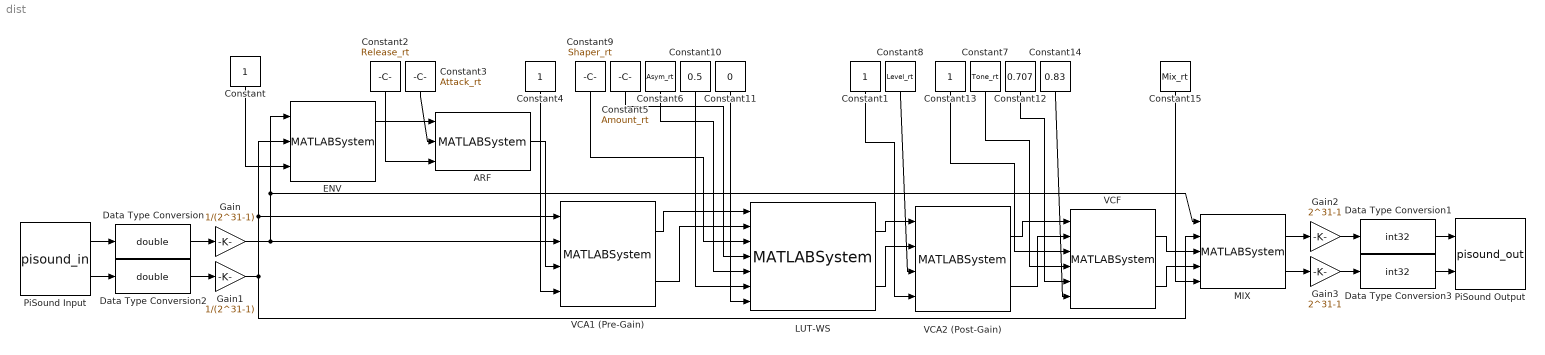
/*
 * Academic License - for use in teaching, academic research, and meeting
 * course requirements at degree granting institutions only.  Not for
 * government, commercial, or other organizational use.
 *
 * File: dist.c
 *
 * Code generated for Simulink model 'dist'.
 *
 * Model version                  : 1.41
 * Simulink Coder version         : 25.2 (R2025b) 28-Jul-2025
 * C/C++ source code generated on : Fri Mar  6 12:08:05 2026
 *
 * Target selection: ert.tlc
 * Embedded hardware selection: Intel->x86-64 (Windows64)
 * Code generation objectives: Unspecified
 * Validation result: Not run
 */

#include "dist.h"
#include "rtwtypes.h"
#include "dist_types.h"
#include <string.h>
#include <math.h>
#include "dist_private.h"
#include "rt_nonfinite.h"

/* Block signals (default storage) */
B_dist_T dist_B;

/* Block states (default storage) */
DW_dist_T dist_DW;

/* Real-time model */
static RT_MODEL_dist_T dist_M_;
RT_MODEL_dist_T *const dist_M = &dist_M_;

/* Forward declaration for local functions */
static boolean_T dist_isequal(const real_T varargin_1[257], const real_T
  varargin_2[257]);
static void dist_filter(const real_T b[15], const real_T x[256], const real_T
  zi[14], real_T y[256], real_T zf[14]);
static void dist_filter_k(const real_T b[15], const real_T x[512], const real_T
  zi[14], real_T y[512], real_T zf[14]);
static real_T dist_lut_ws_sys_shapeOne(const lut_ws_sys_dist_T *obj, real_T x,
  uint8_T md, real_T drive, real_T b, real_T cheb3, real_T cheb5, const real_T
  xGrid[257], const real_T yGrid[257]);
static void dis_lut_ws_sys_processChannelOS(const lut_ws_sys_dist_T *obj, const
  real_T x[128], uint8_T os, uint8_T md, real_T drive, real_T b, real_T cheb3,
  real_T cheb5, const real_T xGrid[257], const real_T yGrid[257], real_T zUp1[14],
  real_T zUp2[14], real_T zDn1[14], real_T zDn2[14], real_T y[128]);
static void dist_filter_kn(real_T b[3], real_T a[3], const real_T x[128], const
  real_T zi[2], real_T y[128], real_T zf[2]);
real_T rt_powd_snf(real_T u0, real_T u1)
{
  real_T y;
  if (rtIsNaN(u0) || rtIsNaN(u1)) {
    y = (rtNaN);
  } else {
    real_T tmp;
    real_T tmp_0;
    tmp = fabs(u0);
    tmp_0 = fabs(u1);
    if (rtIsInf(u1)) {
      if (tmp == 1.0) {
        y = 1.0;
      } else if (tmp > 1.0) {
        if (u1 > 0.0) {
          y = (rtInf);
        } else {
          y = 0.0;
        }
      } else if (u1 > 0.0) {
        y = 0.0;
      } else {
        y = (rtInf);
      }
    } else if (tmp_0 == 0.0) {
      y = 1.0;
    } else if (tmp_0 == 1.0) {
      if (u1 > 0.0) {
        y = u0;
      } else {
        y = 1.0 / u0;
      }
    } else if (u1 == 2.0) {
      y = u0 * u0;
    } else if ((u1 == 0.5) && (u0 >= 0.0)) {
      y = sqrt(u0);
    } else if ((u0 < 0.0) && (u1 > floor(u1))) {
      y = (rtNaN);
    } else {
      y = pow(u0, u1);
    }
  }

  return y;
}

static boolean_T dist_isequal(const real_T varargin_1[257], const real_T
  varargin_2[257])
{
  int32_T b_k;
  boolean_T exitg1;
  boolean_T p;
  boolean_T p_0;
  p = false;

  /* Start for MATLABSystem: '<Root>/LUT-WS' */
  p_0 = true;
  b_k = 0;
  exitg1 = false;
  while ((!exitg1) && (b_k < 257)) {
    if (!(varargin_1[b_k] == varargin_2[b_k])) {
      p_0 = false;
      exitg1 = true;
    } else {
      b_k++;
    }
  }

  if (p_0) {
    p = true;
  }

  return p;
}

real_T rt_roundd_snf(real_T u)
{
  real_T y;
  if (fabs(u) < 4.503599627370496E+15) {
    if (u >= 0.5) {
      y = floor(u + 0.5);
    } else if (u > -0.5) {
      y = u * 0.0;
    } else {
      y = ceil(u - 0.5);
    }
  } else {
    y = u;
  }

  return y;
}

static void dist_filter(const real_T b[15], const real_T x[256], const real_T
  zi[14], real_T y[256], real_T zf[14])
{
  int32_T b_j;
  int32_T b_k;
  for (b_k = 0; b_k < 14; b_k++) {
    zf[b_k] = 0.0;
    y[b_k] = zi[b_k];
  }

  memset(&y[14], 0, 242U * sizeof(real_T));
  for (b_k = 0; b_k < 15; b_k++) {
    for (b_j = b_k + 1; b_j < 257; b_j++) {
      y[b_j - 1] += x[(b_j - b_k) - 1] * b[b_k];
    }
  }

  for (b_k = 0; b_k < 14; b_k++) {
    for (b_j = 0; b_j <= b_k; b_j++) {
      /* Start for MATLABSystem: '<Root>/LUT-WS' */
      zf[b_j] += b[(b_j - b_k) + 14] * x[b_k + 242];
    }
  }
}

static void dist_filter_k(const real_T b[15], const real_T x[512], const real_T
  zi[14], real_T y[512], real_T zf[14])
{
  int32_T b_j;
  int32_T b_k;
  for (b_k = 0; b_k < 14; b_k++) {
    zf[b_k] = 0.0;
    y[b_k] = zi[b_k];
  }

  memset(&y[14], 0, 498U * sizeof(real_T));
  for (b_k = 0; b_k < 15; b_k++) {
    for (b_j = b_k + 1; b_j < 513; b_j++) {
      y[b_j - 1] += x[(b_j - b_k) - 1] * b[b_k];
    }
  }

  for (b_k = 0; b_k < 14; b_k++) {
    for (b_j = 0; b_j <= b_k; b_j++) {
      /* Start for MATLABSystem: '<Root>/LUT-WS' */
      zf[b_j] += b[(b_j - b_k) + 14] * x[b_k + 498];
    }
  }
}

static real_T dist_lut_ws_sys_shapeOne(const lut_ws_sys_dist_T *obj, real_T x,
  uint8_T md, real_T drive, real_T b, real_T cheb3, real_T cheb5, const real_T
  xGrid[257], const real_T yGrid[257])
{
  real_T y;

  /*  SHAPER (una muestra) */
  /*  pre: drive + bias */
  y = drive * x + b;

  /* Start for MATLABSystem: '<Root>/LUT-WS' */
  if (rtIsInf(y) || rtIsNaN(y)) {
    y = 0.0;
  }

  /*  limitar a rango razonable antes de funciones no lineales */
  /* u = clamp(obj, u, -1.0, 1.0); */
  if (md == 1) {
    /*  ---- Hard clip simétrico ---- */
    if (y < -1.0) {
      y = -1.0;
    } else if (y > 1.0) {
      y = 1.0;
    }
  } else if (md == 2) {
    /*  ---- Soft clip polinómico (tipo 3er orden, continuo) ---- */
    if (y < -2.0) {
      y = -2.0;
    } else if (y > 2.0) {
      y = 2.0;
    }

    /*  y = u - u^3/3 para |u|<=1  (suave, sin discontinuidad) */
    /*  (si quieres más agresivo, usa otro polinomio) */
    y -= y * y * y / 3.0;
  } else if (md == 3) {
    /*  ---- Tanh (soft saturación) ---- */
    /*  Normalizamos ligeramente para que tanh(1) no sea demasiado bajo */
    y = tanh(2.0 * y) / 0.9640275800758169;
  } else if (md == 4) {
    /*  ---- Asym clip (bias ya aplicado) + hard clip ---- */
    /*  Asimetría sale de b; aquí solo clippeamos. */
    /* y = clamp(obj, u, -1.0, 1.0); */
    /*  recorta antes en negativo */
    if (y < -0.6) {
      y = -0.6;
    } else if (y > 1.0) {
      y = 1.0;
    }

    /*  renormaliza */
  } else if (md == 5) {
    real_T den;
    real_T u2;

    /*  ---- Chebyshev controlado (T1 + a3*T3 + a5*T5) ---- */
    /*  Para x en [-1,1]: */
    /*  T1=u */
    /*  T3=4u^3-3u */
    /*  T5=16u^5-20u^3+5u */
    if (y < -1.0) {
      y = -1.0;
    } else if (y > 1.0) {
      y = 1.0;
    }

    u2 = y * y;
    den = u2 * y;
    y = ((den * u2 * 16.0 - 20.0 * den) + 5.0 * y) * cheb5 + ((4.0 * den - 3.0 *
      y) * cheb3 + y);

    /*  re-limit (Chebyshev puede exceder) */
    if (y < -1.0) {
      y = -1.0;
    } else if (y > 1.0) {
      y = 1.0;
    }

    /*  ---- User LUT: y = interp(u; XUser,YUser) ---- */
    /*  Interpolación lineal LUT (saturación) */
  } else if (y <= xGrid[0]) {
    y = yGrid[0];
  } else if (y >= xGrid[256]) {
    y = yGrid[256];
  } else {
    real_T den;
    real_T u2;
    int32_T b_i;
    int32_T k;
    boolean_T exitg1;
    k = 1;
    b_i = 0;
    exitg1 = false;
    while ((!exitg1) && (b_i < 256)) {
      if (y < xGrid[b_i + 1]) {
        k = b_i + 1;
        exitg1 = true;
      } else {
        b_i++;
      }
    }

    u2 = xGrid[k - 1];
    den = xGrid[k] - u2;
    if ((den <= obj->Eps) || (rtIsInf(den) || rtIsNaN(den))) {
      y = yGrid[k - 1];
    } else {
      real_T y_tmp;
      y_tmp = yGrid[k - 1];
      y = (y - u2) / den * (yGrid[k] - y_tmp) + y_tmp;
    }
  }

  /*  post: opcionalmente quitar bias DC introducido (simple, estático) */
  /*  En audio real, quitar DC es mejor con HPF muy suave; aquí hacemos corrección estática: */
  /* y = y - b; */
  if (rtIsInf(y) || rtIsNaN(y)) {
    y = 0.0;
  }

  /*  limitar salida final */
  if (y < -1.0) {
    y = -1.0;
  } else if (y > 1.0) {
    y = 1.0;
  }

  /* End of Start for MATLABSystem: '<Root>/LUT-WS' */
  return y;
}

static void dis_lut_ws_sys_processChannelOS(const lut_ws_sys_dist_T *obj, const
  real_T x[128], uint8_T os, uint8_T md, real_T drive, real_T b, real_T cheb3,
  real_T cheb5, const real_T xGrid[257], const real_T yGrid[257], real_T zUp1[14],
  real_T zUp2[14], real_T zDn1[14], real_T zDn2[14], real_T y[128])
{
  real_T b_y2_0[512];
  real_T u_0[512];
  real_T y4[512];
  real_T b_y2[256];
  real_T u[256];
  real_T y2[256];
  int32_T i;
  static const real_T tmp[15] = { -0.000106360599, 0.0, 0.00695210045, 0.0,
    -0.0516884606, 0.0, 0.294825487, 0.500034468, 0.294825487, 0.0,
    -0.0516884606, 0.0, 0.00695210045, 0.0, -0.000106360599 };

  real_T zUp1_0[14];

  /* Start for MATLABSystem: '<Root>/LUT-WS' */
  if (os == 0) {
    for (i = 0; i < 128; i++) {
      y[i] = dist_lut_ws_sys_shapeOne(obj, x[i], md, drive, b, cheb3, cheb5,
        xGrid, yGrid);
    }
  } else if (os == 1) {
    memset(&u[0], 0, sizeof(real_T) << 8U);
    for (i = 0; i < 128; i++) {
      u[i << 1] = x[i];
    }

    memcpy(&zUp1_0[0], &zUp1[0], 14U * sizeof(real_T));
    dist_filter(tmp, u, zUp1_0, b_y2, zUp1);

    /*  2N */
    for (i = 0; i < 256; i++) {
      y2[i] = dist_lut_ws_sys_shapeOne(obj, b_y2[i], md, drive, b, cheb3, cheb5,
        xGrid, yGrid);
    }

    memcpy(&zUp1_0[0], &zDn1[0], 14U * sizeof(real_T));
    dist_filter(tmp, y2, zUp1_0, u, zDn1);
    for (i = 0; i < 128; i++) {
      y[i] = u[i << 1];
    }

    /*  N */
  } else {
    memset(&u[0], 0, sizeof(real_T) << 8U);
    for (i = 0; i < 128; i++) {
      u[i << 1] = x[i];
    }

    memcpy(&zUp1_0[0], &zUp1[0], 14U * sizeof(real_T));
    dist_filter(tmp, u, zUp1_0, b_y2, zUp1);

    /*  2N */
    memset(&u_0[0], 0, sizeof(real_T) << 9U);
    for (i = 0; i < 256; i++) {
      u_0[i << 1] = b_y2[i];
    }

    memcpy(&zUp1_0[0], &zUp2[0], 14U * sizeof(real_T));
    dist_filter_k(tmp, u_0, zUp1_0, b_y2_0, zUp2);

    /*  4N */
    for (i = 0; i < 512; i++) {
      y4[i] = dist_lut_ws_sys_shapeOne(obj, b_y2_0[i], md, drive, b, cheb3,
        cheb5, xGrid, yGrid);
    }

    memcpy(&zUp1_0[0], &zDn2[0], 14U * sizeof(real_T));
    dist_filter_k(tmp, y4, zUp1_0, u_0, zDn2);

    /*  2N */
    for (i = 0; i < 256; i++) {
      b_y2[i] = u_0[i << 1];
    }

    memcpy(&zUp1_0[0], &zDn1[0], 14U * sizeof(real_T));
    dist_filter(tmp, b_y2, zUp1_0, u, zDn1);
    for (i = 0; i < 128; i++) {
      y[i] = u[i << 1];
    }

    /*  N */
  }

  /* End of Start for MATLABSystem: '<Root>/LUT-WS' */
}

static void dist_filter_kn(real_T b[3], real_T a[3], const real_T x[128], const
  real_T zi[2], real_T y[128], real_T zf[2])
{
  int32_T b_j;
  int32_T e_k;
  int32_T naxpy;

  /* Start for MATLABSystem: '<Root>/VCF' */
  if ((!rtIsInf(a[0])) && (!rtIsNaN(a[0])) && (!(a[0] == 0.0)) && (a[0] != 1.0))
  {
    b[0] /= a[0];
    b[1] /= a[0];
    b[2] /= a[0];
    a[1] /= a[0];
    a[2] /= a[0];
    a[0] = 1.0;
  }

  zf[0] = 0.0;
  y[0] = zi[0];
  zf[1] = 0.0;
  y[1] = zi[1];
  memset(&y[2], 0, 126U * sizeof(real_T));
  for (e_k = 0; e_k < 128; e_k++) {
    real_T as;
    int32_T y_tmp;

    /* Start for MATLABSystem: '<Root>/VCF' */
    if (128 - e_k <= 3) {
      naxpy = 128 - e_k;
    } else {
      naxpy = 3;
    }

    for (b_j = 0; b_j < naxpy; b_j++) {
      y_tmp = e_k + b_j;

      /* Start for MATLABSystem: '<Root>/VCF' */
      y[y_tmp] += x[e_k] * b[b_j];
    }

    /* Start for MATLABSystem: '<Root>/VCF' */
    if (127 - e_k <= 2) {
      naxpy = 127 - e_k;
    } else {
      naxpy = 2;
    }

    as = -y[e_k];
    for (b_j = 0; b_j < naxpy; b_j++) {
      y_tmp = (b_j + e_k) + 1;
      y[y_tmp] += a[b_j + 1] * as;
    }
  }

  for (e_k = 0; e_k < 2; e_k++) {
    for (naxpy = 0; naxpy <= e_k; naxpy++) {
      /* Start for MATLABSystem: '<Root>/VCF' */
      zf[naxpy] += b[(naxpy - e_k) + 2] * x[e_k + 126];
    }
  }

  for (e_k = 0; e_k < 2; e_k++) {
    for (naxpy = 0; naxpy <= e_k; naxpy++) {
      /* Start for MATLABSystem: '<Root>/VCF' */
      zf[naxpy] += a[(naxpy - e_k) + 2] * -y[e_k + 126];
    }
  }
}

/* Model step function */
void dist_step(void)
{
  real_T xGrid[257];
  real_T yGrid[257];
  real_T rtb_ARF_0[128];
  real_T rtb_ENV_o1_0[128];
  real_T rtb_Gain[128];
  real_T rtb_Gain1[128];
  real_T rtb_Gain1_0[128];
  real_T rtb_Gain_0[128];
  real_T c[14];
  real_T d[14];
  real_T e_0[14];
  real_T f[14];
  real_T tmp_0[3];
  real_T tmp_1[3];
  real_T tmp[2];
  real_T A;
  real_T a0;
  real_T a0_tmp;
  real_T a0_tmp_0;
  real_T alpha;
  real_T alphaR;
  real_T e;
  real_T f_0;
  real_T p;
  real_T q;
  real_T sqrtA;
  real_T wc;
  int32_T Mu;
  int32_T b_k;
  int32_T i;
  int32_T t;

  /* S-Function (pisound_in): '<Root>/PiSound Input' */

  /* Level2 S-Function Block: '<Root>/PiSound Input' (pisound_in) */
  {
    SimStruct *rts = dist_M->childSfunctions[0];
    sfcnOutputs(rts,0);
  }

  for (i = 0; i < 128; i++) {
    /* Gain: '<Root>/Gain' incorporates:
     *  DataTypeConversion: '<Root>/Data Type Conversion'
     */
    rtb_Gain[i] = dist_P.Gain_Gain * (real_T)dist_B.PiSoundInput_o1[i];

    /* Gain: '<Root>/Gain1' incorporates:
     *  DataTypeConversion: '<Root>/Data Type Conversion2'
     */
    rtb_Gain1[i] = dist_P.Gain1_Gain * (real_T)dist_B.PiSoundInput_o2[i];
  }

  /* MATLABSystem: '<Root>/ENV' incorporates:
   *  Constant: '<Root>/Constant'
   */
  if (dist_DW.obj_n.ModeDefault != dist_P.ENV_ModeDefault) {
    dist_DW.obj_n.ModeDefault = dist_P.ENV_ModeDefault;
  }

  if (dist_DW.obj_n.Eps != dist_P.ENV_Eps) {
    dist_DW.obj_n.Eps = dist_P.ENV_Eps;
  }

  if (dist_DW.obj_n.TauRMS != dist_P.ENV_TauRMS) {
    dist_DW.obj_n.TauRMS = dist_P.ENV_TauRMS;
  }

  memset(&rtb_ENV_o1_0[0], 0, sizeof(real_T) << 7U);
  if (dist_P.Constant_Value == 1) {
    /*  -------- PEAK (instantáneo) -------- */
    for (t = 0; t < 128; t++) {
      rtb_ENV_o1_0[t] = log10(fmax(fabs(rtb_Gain[t]), fabs(rtb_Gain1[t])) +
        dist_DW.obj_n.Eps) * 20.0;
    }
  } else if (dist_P.Constant_Value == 2) {
    /*  -------- RMS (instantáneo por muestra) -------- */
    /*  RMS instantáneo por muestra: sqrt(max(x^2)) */
    for (t = 0; t < 128; t++) {
      e = rtb_Gain[t];
      alphaR = rtb_Gain1[t];
      rtb_ENV_o1_0[t] = log10(sqrt(fmax(e * e, alphaR * alphaR) +
        dist_DW.obj_n.Eps)) * 20.0;

      /*  ya tiene eps dentro */
    }
  } else if (dist_P.Constant_Value == 3) {
    /*  -------- RMS exponencial (real) -------- */
    alpha = exp(-1.0 / (dist_DW.obj_n.TauRMS * 48000.0));
    for (t = 0; t < 128; t++) {
      e = rtb_Gain[t];
      alphaR = rtb_Gain1[t];
      e = (e * e + alphaR * alphaR) * 0.5 * (1.0 - alpha) + alpha *
        dist_DW.obj_n.e_prev;
      dist_DW.obj_n.e_prev = e;
      rtb_ENV_o1_0[t] = log10(sqrt(e + dist_DW.obj_n.Eps)) * 20.0;
    }
  }

  /* MATLABSystem: '<Root>/ARF' incorporates:
   *  Constant: '<Root>/Constant2'
   *  Constant: '<Root>/Constant3'
   *  MATLABSystem: '<Root>/ENV'
   */
  if (dist_DW.obj_m.AttackDefault != dist_P.ARF_AttackDefault) {
    dist_DW.obj_m.AttackDefault = dist_P.ARF_AttackDefault;
  }

  if (dist_DW.obj_m.ReleaseDefault != dist_P.ARF_ReleaseDefault) {
    dist_DW.obj_m.ReleaseDefault = dist_P.ARF_ReleaseDefault;
  }

  /*  Evitar tiempos no válidos */
  alpha = exp(-1.0 / (fmax(dist_P.Attack_rt, 1.0E-6) * 48000.0));
  alphaR = exp(-1.0 / (fmax(dist_P.Release_rt, 1.0E-6) * 48000.0));
  e = dist_DW.obj_m.gPrev_dB;
  for (t = 0; t < 128; t++) {
    /* MATLABSystem: '<Root>/ENV' */
    f_0 = rtb_ENV_o1_0[t];
    if (f_0 < e) {
      /*  Entrando en compresión (ganancia baja): ataque */
      e = (1.0 - alpha) * f_0 + alpha * e;
    } else {
      /*  Saliendo de compresión (ganancia sube): release */
      e = (1.0 - alphaR) * f_0 + alphaR * e;
    }

    rtb_ARF_0[t] = e;
  }

  dist_DW.obj_m.gPrev_dB = e;

  /* MATLABSystem: '<Root>/VCA1 (Pre-Gain)' incorporates:
   *  Constant: '<Root>/Constant4'
   *  MATLABSystem: '<Root>/ARF'
   */
  /*  g es Nx1 */
  if (dist_P.Constant4_Value != 0) {
    for (b_k = 0; b_k < 128; b_k++) {
      rtb_ARF_0[b_k] = rt_powd_snf(10.0, rtb_ARF_0[b_k] / 20.0);
    }

    /*  dB -> lineal, elemento a elemento */
  }

  /* MATLABSystem: '<Root>/LUT-WS' incorporates:
   *  Constant: '<Root>/Constant5'
   *  Constant: '<Root>/Constant6'
   *  Constant: '<Root>/Constant9'
   */
  /*  bp es logical */
  /*  elemento a elemento */
  if (dist_DW.obj.ModeDefault != dist_P.LUTWS_ModeDefault) {
    dist_DW.obj.ModeDefault = dist_P.LUTWS_ModeDefault;
  }

  if (dist_DW.obj.AmountDefault != dist_P.LUTWS_AmountDefault) {
    dist_DW.obj.AmountDefault = dist_P.LUTWS_AmountDefault;
  }

  if (dist_DW.obj.AsymDefault != dist_P.LUTWS_AsymDefault) {
    dist_DW.obj.AsymDefault = dist_P.LUTWS_AsymDefault;
  }

  if (dist_DW.obj.Cheb3Default != dist_P.LUTWS_Cheb3Default) {
    dist_DW.obj.Cheb3Default = dist_P.LUTWS_Cheb3Default;
  }

  if (dist_DW.obj.Cheb5Default != dist_P.LUTWS_Cheb5Default) {
    dist_DW.obj.Cheb5Default = dist_P.LUTWS_Cheb5Default;
  }

  if (!dist_isequal(dist_DW.obj.XUser, dist_P.LUTWS_XUser)) {
    memcpy(&dist_DW.obj.XUser[0], &dist_P.LUTWS_XUser[0], 257U * sizeof(real_T));
  }

  if (!dist_isequal(dist_DW.obj.YUser, dist_P.LUTWS_YUser)) {
    memcpy(&dist_DW.obj.YUser[0], &dist_P.LUTWS_YUser[0], 257U * sizeof(real_T));
  }

  if (dist_DW.obj.MUser != dist_P.LUTWS_MUser) {
    dist_DW.obj.MUser = dist_P.LUTWS_MUser;
  }

  if (dist_DW.obj.Eps != dist_P.LUTWS_Eps) {
    dist_DW.obj.Eps = dist_P.LUTWS_Eps;
  }

  /*  inL,inR,mode,amount,asym,cheb3,cheb5 */
  /*  Nloc = size(inL,1); */
  /*  outL = zeros(Nloc,1); */
  /*  outR = zeros(Nloc,1); */
  /*  bp es logical */
  /*  --- defaults --- */
  t = (int32_T)fmin(fmax(dist_P.Shaper_rt, 1.0), 6.0);

  /*  por ejemplo */
  if (dist_P.Asym_rt < -0.5) {
    e = -0.5;
  } else if (dist_P.Asym_rt > 0.5) {
    e = 0.5;
  } else {
    e = dist_P.Asym_rt;
  }

  /*  drive interno (lineal) */
  if (dist_P.Amount_rt < 0.0) {
    alpha = 0.0;
  } else if (dist_P.Amount_rt > 60.0) {
    alpha = 60.0;
  } else {
    alpha = dist_P.Amount_rt;
  }

  alpha = rt_powd_snf(10.0, alpha / 20.0);

  /*  preparar LUT usuario (si aplica) */
  /*  (tamaño fijo M, relleno seguro) */
  memset(&xGrid[0], 0, 257U * sizeof(real_T));
  memset(&yGrid[0], 0, 257U * sizeof(real_T));
  if (t == 6) {
    i = (int32_T)rt_roundd_snf(fmin(fmax(dist_DW.obj.MUser, 1.0), 257.0));
    memcpy(&xGrid[0], &dist_DW.obj.XUser[0], (uint32_T)((i - 1) + 1) * sizeof
           (real_T));
    memcpy(&yGrid[0], &dist_DW.obj.YUser[0], (uint32_T)((i - 1) + 1) * sizeof
           (real_T));
    b_k = i + 1;
    for (Mu = b_k; Mu < 258; Mu++) {
      xGrid[Mu - 1] = xGrid[i - 1];
      yGrid[Mu - 1] = yGrid[i - 1];
    }
  }

  /* Start for MATLABSystem: '<Root>/LUT-WS' */
  memcpy(&c[0], &dist_DW.obj.zUp1L[0], 14U * sizeof(real_T));
  memcpy(&d[0], &dist_DW.obj.zUp2L[0], 14U * sizeof(real_T));
  memcpy(&e_0[0], &dist_DW.obj.zDn1L[0], 14U * sizeof(real_T));
  memcpy(&f[0], &dist_DW.obj.zDn2L[0], 14U * sizeof(real_T));
  for (i = 0; i < 128; i++) {
    /* Start for MATLABSystem: '<Root>/VCA1 (Pre-Gain)' */
    rtb_Gain1_0[i] = rtb_Gain1[i] * rtb_ARF_0[i];
  }

  /* Start for MATLABSystem: '<Root>/LUT-WS' incorporates:
   *  Constant: '<Root>/Constant10'
   *  Constant: '<Root>/Constant11'
   */
  dis_lut_ws_sys_processChannelOS(&dist_DW.obj, rtb_Gain1_0, 1, (uint8_T)t,
    alpha, e, dist_P.Constant10_Value, dist_P.Constant11_Value, xGrid, yGrid, c,
    d, e_0, f, rtb_ENV_o1_0);
  for (i = 0; i < 14; i++) {
    /* MATLABSystem: '<Root>/LUT-WS' */
    dist_DW.obj.zUp1L[i] = c[i];
    dist_DW.obj.zUp2L[i] = d[i];
    dist_DW.obj.zDn1L[i] = e_0[i];
    dist_DW.obj.zDn2L[i] = f[i];

    /* Start for MATLABSystem: '<Root>/LUT-WS' */
    c[i] = dist_DW.obj.zUp1R[i];
    d[i] = dist_DW.obj.zUp2R[i];
    e_0[i] = dist_DW.obj.zDn1R[i];
    f[i] = dist_DW.obj.zDn2R[i];
  }

  for (i = 0; i < 128; i++) {
    /* Start for MATLABSystem: '<Root>/VCA1 (Pre-Gain)' */
    rtb_Gain_0[i] = rtb_Gain[i] * rtb_ARF_0[i];
  }

  /* Start for MATLABSystem: '<Root>/LUT-WS' incorporates:
   *  Constant: '<Root>/Constant10'
   *  Constant: '<Root>/Constant11'
   */
  dis_lut_ws_sys_processChannelOS(&dist_DW.obj, rtb_Gain_0, 1, (uint8_T)t, alpha,
    e, dist_P.Constant10_Value, dist_P.Constant11_Value, xGrid, yGrid, c, d, e_0,
    f, rtb_Gain1_0);

  /* MATLABSystem: '<Root>/LUT-WS' */
  memcpy(&dist_DW.obj.zUp1R[0], &c[0], 14U * sizeof(real_T));
  memcpy(&dist_DW.obj.zUp2R[0], &d[0], 14U * sizeof(real_T));
  memcpy(&dist_DW.obj.zDn1R[0], &e_0[0], 14U * sizeof(real_T));
  memcpy(&dist_DW.obj.zDn2R[0], &f[0], 14U * sizeof(real_T));

  /* MATLABSystem: '<Root>/VCA2 (Post-Gain)' incorporates:
   *  Constant: '<Root>/Constant1'
   *  Constant: '<Root>/Constant8'
   */
  e = dist_P.Level_rt;

  /*  g es Nx1 */
  if (dist_P.Constant1_Value != 0) {
    e = rt_powd_snf(10.0, dist_P.Level_rt / 20.0);

    /*  dB -> lineal, elemento a elemento */
  }

  /* MATLABSystem: '<Root>/VCF' incorporates:
   *  Constant: '<Root>/Constant12'
   *  Constant: '<Root>/Constant13'
   *  Constant: '<Root>/Constant14'
   *  Constant: '<Root>/Constant7'
   */
  /*  bp es logical */
  /*  elemento a elemento */
  /*  acepta double y castea */
  if ((dist_P.Constant13_Value != dist_DW.obj_d.lastType) || (dist_P.Tone_rt !=
       dist_DW.obj_d.lastFreq) || (dist_P.Constant12_Value !=
       dist_DW.obj_d.lastQ) || (dist_P.Constant14_Value !=
       dist_DW.obj_d.lastGain)) {
    f_0 = dist_P.Tone_rt;
    alphaR = dist_P.Constant12_Value;
    alpha = dist_P.Constant14_Value;
    t = dist_P.Constant13_Value;
    if (rtIsInf(dist_P.Tone_rt) || rtIsNaN(dist_P.Tone_rt)) {
      f_0 = 1000.0;
    }

    if (rtIsInf(dist_P.Constant12_Value) || rtIsNaN(dist_P.Constant12_Value)) {
      alphaR = 0.707;
    }

    if (rtIsInf(dist_P.Constant14_Value) || rtIsNaN(dist_P.Constant14_Value)) {
      alpha = 0.0;
    }

    /*  límites prácticos */
    if (f_0 < 0.1) {
      f_0 = 0.1;
    }

    if (f_0 > 23952.0) {
      f_0 = 23952.0;
    }

    if (alphaR < 0.001) {
      alphaR = 0.001;
    }

    wc = f_0 / 48000.0 * 6.2831853071795862;
    if (dist_P.Constant13_Value < 1) {
      t = 1;
    } else if (dist_P.Constant13_Value > 7) {
      t = 7;
    }

    dist_DW.obj_d.b[0] = 1.0;
    dist_DW.obj_d.a[0] = 1.0;
    dist_DW.obj_d.b[1] = 0.0;
    dist_DW.obj_d.a[1] = 0.0;
    dist_DW.obj_d.b[2] = 0.0;
    dist_DW.obj_d.a[2] = 0.0;
    switch ((uint8_T)t) {
     case 1U:
      /*  lowpass */
      /* Cálculo de los coefifientes de un Filtro Paso-Bajo de 2º orden */
      /* Parámetos de entrada:  */
      /* wo = frecuencia de corte a -3dB (en radianes) */
      /* Parametros de salida: */
      /* Coeficientes [b,a] de un filtro IIR de segundo orden */
      p = cos(wc);
      f_0 = 1.4142135623730951 * sin(wc);

      /* Normalización de coeficientes */
      /* fvtool(b,a); */
      alpha = (1.0 - p) / (f_0 + 2.0);
      dist_DW.obj_d.b[0] = alpha;
      dist_DW.obj_d.b[1] = (1.0 - p) * 2.0 / (f_0 + 2.0);
      dist_DW.obj_d.b[2] = alpha;
      dist_DW.obj_d.a[0] = (f_0 + 2.0) / (f_0 + 2.0);
      dist_DW.obj_d.a[1] = -4.0 * p / (f_0 + 2.0);
      dist_DW.obj_d.a[2] = (2.0 - f_0) / (f_0 + 2.0);
      break;

     case 2U:
      /*  highpass */
      /* Cálculo de los coefifientes de un Filtro Paso-Alto de 2º orden */
      /* Parámetos de entrada:  */
      /* wo = frecuencia de corte a -3dB (en radianes) */
      /* Parametros de salida: */
      /* Coeficientes [b,a] de un filtro IIR de segundo orden */
      p = cos(wc);

      /*  Coeficientes del ecualizador */
      f_0 = 1.4142135623730951 * sin(wc);

      /* Normalización de coeficientes */
      /*  */
      /* fvtool(b,a); */
      alpha = (p + 1.0) / (f_0 + 2.0);
      dist_DW.obj_d.b[0] = alpha;
      dist_DW.obj_d.b[1] = (p + 1.0) * -2.0 / (f_0 + 2.0);
      dist_DW.obj_d.b[2] = alpha;
      dist_DW.obj_d.a[0] = (f_0 + 2.0) / (f_0 + 2.0);
      dist_DW.obj_d.a[1] = -4.0 * p / (f_0 + 2.0);
      dist_DW.obj_d.a[2] = (2.0 - f_0) / (f_0 + 2.0);
      break;

     case 3U:
      /*  bandpass (0 dB peak) */
      /* Cálculo de los coefifientes de un Filtro Paso-Banda 2º orden */
      /* Parámetos de entrada:  */
      /* wo = frecuencia central (en radianes) */
      /* Q = factor de calidad */
      /*  */
      /* Parametros de salida: */
      /* Coeficientes [b,a] de un filtro IIR de segundo orden */
      f_0 = sin(wc) / alphaR;

      /*  <-- Q aquí */
      /*  Coeficientes del ecualizador */
      /* Normalización de coeficientes */
      /* fvtool(b,a); */
      dist_DW.obj_d.b[0] = f_0 / (f_0 + 2.0);
      dist_DW.obj_d.b[1] = 0.0 / (f_0 + 2.0);
      dist_DW.obj_d.b[2] = -f_0 / (f_0 + 2.0);
      dist_DW.obj_d.a[0] = (f_0 + 2.0) / (f_0 + 2.0);
      dist_DW.obj_d.a[1] = -4.0 * cos(wc) / (f_0 + 2.0);
      dist_DW.obj_d.a[2] = (2.0 - f_0) / (f_0 + 2.0);
      break;

     case 4U:
      /*  bandreject / notch */
      /* Cálculo de los coefifientes de un Filtro Paso-Banda 2º orden */
      /* Parámetos de entrada:  */
      /* wo = frecuencia central (en radianes) */
      /* Q = factor de calidad */
      /*  */
      /* Parametros de salida: */
      /* Coeficientes [b,a] de un filtro IIR de segundo orden */
      /*  Coeficientes del ecualizador */
      f_0 = sin(wc) / alphaR;

      /* Normalización de coeficientes */
      /* fvtool(b,a); */
      alpha = 2.0 / (f_0 + 2.0);
      dist_DW.obj_d.b[0] = alpha;
      wc = -4.0 * cos(wc) / (f_0 + 2.0);
      dist_DW.obj_d.b[1] = wc;
      dist_DW.obj_d.b[2] = alpha;
      dist_DW.obj_d.a[0] = (f_0 + 2.0) / (f_0 + 2.0);
      dist_DW.obj_d.a[1] = wc;
      dist_DW.obj_d.a[2] = (2.0 - f_0) / (f_0 + 2.0);
      break;

     case 5U:
      /*  lowshelf (RBJ, usando Q como S) */
      /* Cálculo de los coefifientes de un Filtro Paso-Banda 2º orden */
      /* Parámetos de entrada:  */
      /* wo = frecuencia central (en radianes) */
      /* Q = factor de calidad */
      /*  */
      /* Parametros de salida: */
      /* Coeficientes [b,a] de un filtro IIR de segundo orden */
      A = rt_powd_snf(10.0, alpha / 40.0);
      sqrtA = sqrt(A);
      p = cos(wc);
      q = sin(wc);

      /*  Coeficientes del ecualizador */
      f_0 = 1.0 / A;
      a0_tmp = (1.0 - f_0) * p + (f_0 + 1.0);
      a0_tmp_0 = 1.4142135623730951 * q / sqrtA;
      a0 = a0_tmp + a0_tmp_0;

      /* Normalización de coeficientes */
      /* fvtool(b,a); */
      alpha = (1.0 - A) * p + (A + 1.0);
      wc = 1.4142135623730951 * sqrtA * q;
      dist_DW.obj_d.b[0] = (alpha + wc) / a0;
      dist_DW.obj_d.b[1] = ((A + 1.0) * p + (1.0 - A)) * -2.0 / a0;
      dist_DW.obj_d.b[2] = (alpha - wc) / a0;
      dist_DW.obj_d.a[0] = a0 / a0;
      dist_DW.obj_d.a[1] = ((f_0 + 1.0) * p + (1.0 - f_0)) * -2.0 / a0;
      dist_DW.obj_d.a[2] = (a0_tmp - a0_tmp_0) / a0;
      break;

     case 6U:
      /*  highshelf (RBJ, usando Q como S) */
      /* Cálculo de los coefifientes de un Filtro Paso-Banda 2º orden */
      /* Parámetos de entrada:  */
      /* wo = frecuencia central (en radianes) */
      /* Q = factor de calidad */
      /*  */
      /* Parametros de salida: */
      /* Coeficientes [b,a] de un filtro IIR de segundo orden */
      A = rt_powd_snf(10.0, alpha / 40.0);
      sqrtA = sqrt(A);
      p = cos(wc);
      q = sin(wc);

      /*  Coeficientes del ecualizador */
      f_0 = (1.0 - A) * p + (A + 1.0);
      a0_tmp = 1.4142135623730951 * sqrtA * q;
      a0 = f_0 + a0_tmp;
      a0_tmp_0 = A * A;

      /* Normalización de coeficientes */
      /* fvtool(b,a); */
      alpha = 1.0 / A;
      wc = (1.0 - alpha) * p + (alpha + 1.0);
      sqrtA = 1.4142135623730951 * q / sqrtA;
      dist_DW.obj_d.b[0] = (wc + sqrtA) * a0_tmp_0 / a0;
      dist_DW.obj_d.b[1] = ((alpha + 1.0) * p + (1.0 - alpha)) * -2.0 * a0_tmp_0
        / a0;
      dist_DW.obj_d.b[2] = (wc - sqrtA) * a0_tmp_0 / a0;
      dist_DW.obj_d.a[0] = a0 / a0;
      dist_DW.obj_d.a[1] = ((A + 1.0) * p + (1.0 - A)) * -2.0 / a0;
      dist_DW.obj_d.a[2] = (f_0 - a0_tmp) / a0;
      break;

     case 7U:
      /*  peaking / centershelf */
      /* Cálculo de los coefifientes de un Filtro Paso-Banda 2º orden */
      /* Parámetos de entrada:  */
      /* wo = frecuencia central (en radianes) */
      /* Q = factor de calidad */
      /*  */
      /* Parametros de salida: */
      /* Coeficientes [b,a] de un filtro IIR de segundo orden */
      A = rt_powd_snf(10.0, alpha / 40.0);
      alpha = sin(wc) / (2.0 * alphaR);

      /*  Coeficientes del ecualizador */
      f_0 = alpha / A;

      /* Normalización de coeficientes */
      /* fvtool(b,a); */
      alpha *= A;
      dist_DW.obj_d.b[0] = (alpha + 1.0) / (f_0 + 1.0);
      wc = -2.0 * cos(wc) / (f_0 + 1.0);
      dist_DW.obj_d.b[1] = wc;
      dist_DW.obj_d.b[2] = (1.0 - alpha) / (f_0 + 1.0);
      dist_DW.obj_d.a[0] = (f_0 + 1.0) / (f_0 + 1.0);
      dist_DW.obj_d.a[1] = wc;
      dist_DW.obj_d.a[2] = (1.0 - f_0) / (f_0 + 1.0);
      break;
    }

    dist_DW.obj_d.lastType = dist_P.Constant13_Value;
    dist_DW.obj_d.lastFreq = dist_P.Tone_rt;
    dist_DW.obj_d.lastQ = alphaR;
    dist_DW.obj_d.lastGain = dist_P.Constant14_Value;
  }

  /*  bp es logical */
  for (t = 0; t < 128; t++) {
    /* Start for MATLABSystem: '<Root>/VCA2 (Post-Gain)' incorporates:
     *  MATLABSystem: '<Root>/LUT-WS'
     */
    rtb_Gain_0[t] = rtb_ENV_o1_0[t] * e;
  }

  /* MATLABSystem: '<Root>/VCF' */
  for (i = 0; i < 2; i++) {
    tmp[i] = dist_DW.obj_d.zL[i];
  }

  for (i = 0; i < 3; i++) {
    tmp_0[i] = dist_DW.obj_d.b[i];
  }

  for (i = 0; i < 3; i++) {
    tmp_1[i] = dist_DW.obj_d.a[i];
  }

  dist_filter_kn(tmp_0, tmp_1, rtb_Gain_0, tmp, rtb_ARF_0, dist_DW.obj_d.zL);
  for (t = 0; t < 128; t++) {
    /* Start for MATLABSystem: '<Root>/VCA2 (Post-Gain)' incorporates:
     *  MATLABSystem: '<Root>/LUT-WS'
     */
    rtb_Gain_0[t] = rtb_Gain1_0[t] * e;
  }

  /* MATLABSystem: '<Root>/VCF' */
  for (i = 0; i < 2; i++) {
    tmp[i] = dist_DW.obj_d.zR[i];
  }

  for (i = 0; i < 3; i++) {
    tmp_0[i] = dist_DW.obj_d.b[i];
  }

  for (i = 0; i < 3; i++) {
    tmp_1[i] = dist_DW.obj_d.a[i];
  }

  dist_filter_kn(tmp_0, tmp_1, rtb_Gain_0, tmp, rtb_ENV_o1_0, dist_DW.obj_d.zR);

  /* MATLABSystem: '<Root>/MIX' incorporates:
   *  Constant: '<Root>/Constant15'
   */
  if (dist_DW.obj_e.SmoothTime != dist_P.MIX_SmoothTime) {
    dist_DW.obj_e.SmoothTime = dist_P.MIX_SmoothTime;
  }

  if (dist_DW.obj_e.IndepInDB != dist_P.MIX_IndepInDB) {
    dist_DW.obj_e.IndepInDB = dist_P.MIX_IndepInDB;
  }

  /*  inL,inR,wetL,wetR,p1 (+p2 si Mode=2) */
  /*  Mode 3: crossfade por muestra (p1 puede ser [N x 1]) */
  /*  dummy */
  e = fmin(fmax(dist_P.Mix_rt, 0.0), 1.0);
  alphaR = dist_DW.obj_e.a;
  f_0 = dist_DW.obj_e.gd1;
  A = dist_DW.obj_e.gd2;
  p = dist_DW.obj_e.gw1;
  wc = dist_DW.obj_e.gw2;

  /*  más robusto que obj.N */
  for (t = 0; t < 128; t++) {
    f_0 += ((1.0 - e) - f_0) * alphaR;
    p += (e - p) * alphaR;
    A += ((1.0 - e) - A) * alphaR;
    wc += (e - wc) * alphaR;

    /* DataTypeConversion: '<Root>/Data Type Conversion1' incorporates:
     *  Gain: '<Root>/Gain2'
     *  MATLABSystem: '<Root>/VCF'
     */
    alpha = floor((f_0 * rtb_Gain[t] + p * rtb_ARF_0[t]) * dist_P.Gain2_Gain);
    if (rtIsNaN(alpha) || rtIsInf(alpha)) {
      alpha = 0.0;
    } else {
      alpha = fmod(alpha, 4.294967296E+9);
    }

    /* DataTypeConversion: '<Root>/Data Type Conversion1' */
    dist_B.DataTypeConversion1[t] = alpha < 0.0 ? -(int32_T)(uint32_T)-alpha :
      (int32_T)(uint32_T)alpha;

    /* DataTypeConversion: '<Root>/Data Type Conversion3' incorporates:
     *  Gain: '<Root>/Gain3'
     *  MATLABSystem: '<Root>/VCF'
     */
    alpha = floor((A * rtb_Gain1[t] + wc * rtb_ENV_o1_0[t]) * dist_P.Gain3_Gain);
    if (rtIsNaN(alpha) || rtIsInf(alpha)) {
      alpha = 0.0;
    } else {
      alpha = fmod(alpha, 4.294967296E+9);
    }

    /* DataTypeConversion: '<Root>/Data Type Conversion3' */
    dist_B.DataTypeConversion3[t] = alpha < 0.0 ? -(int32_T)(uint32_T)-alpha :
      (int32_T)(uint32_T)alpha;
  }

  dist_DW.obj_e.gd1 = f_0;
  dist_DW.obj_e.gd2 = A;
  dist_DW.obj_e.gw1 = p;
  dist_DW.obj_e.gw2 = wc;

  /* End of MATLABSystem: '<Root>/MIX' */

  /* S-Function (pisound_out): '<Root>/PiSound Output' */

  /* Level2 S-Function Block: '<Root>/PiSound Output' (pisound_out) */
  {
    SimStruct *rts = dist_M->childSfunctions[1];
    sfcnOutputs(rts,0);
  }

  /* Update absolute time for base rate */
  /* The "clockTick0" counts the number of times the code of this task has
   * been executed. The absolute time is the multiplication of "clockTick0"
   * and "Timing.stepSize0". Size of "clockTick0" ensures timer will not
   * overflow during the application lifespan selected.
   */
  dist_M->Timing.t[0] =
    ((time_T)(++dist_M->Timing.clockTick0)) * dist_M->Timing.stepSize0;
}
